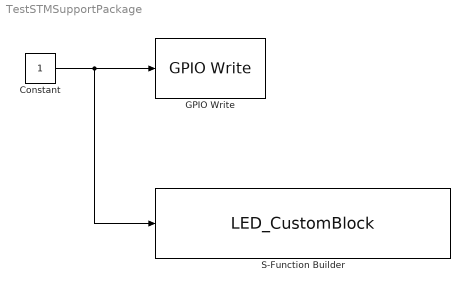
/*
 * Academic License - for use in teaching, academic research, and meeting
 * course requirements at degree granting institutions only.  Not for
 * government, commercial, or other organizational use.
 *
 * File: TestSTMSupportPackage.c
 *
 * Code generated for Simulink model 'TestSTMSupportPackage'.
 *
 * Model version                  : 1.6
 * Simulink Coder version         : 8.10 (R2016a) 10-Feb-2016
 * C/C++ source code generated on : Fri Jul 29 09:42:40 2016
 *
 * Target selection: ert.tlc
 * Embedded hardware selection: ARM Compatible->ARM Cortex
 * Code generation objectives: Unspecified
 * Validation result: Not run
 */

#include "TestSTMSupportPackage.h"
#include "TestSTMSupportPackage_private.h"
#include "TestSTMSupportPackage_dt.h"

/* Block states (auto storage) */
DW_TestSTMSupportPackage_T TestSTMSupportPackage_DW;

/* Real-time model */
RT_MODEL_TestSTMSupportPackag_T TestSTMSupportPackage_M_;
RT_MODEL_TestSTMSupportPackag_T *const TestSTMSupportPackage_M =
  &TestSTMSupportPackage_M_;

/* Model step function */
void TestSTMSupportPackage_step(void)
{
  /* S-Function (stm32f4_do_write): '<Root>/GPIO Write' incorporates:
   *  Constant: '<Root>/Constant'
   */
  MW_GPIO_WriteBit(3U, 13U, TestSTMSupportPackage_P.Constant_Value);

  /* S-Function (LED_CustomBlock): '<Root>/S-Function Builder' */
  LED_CustomBlock_Outputs_wrapper(&TestSTMSupportPackage_P.Constant_Value,
    &TestSTMSupportPackage_DW.SFunctionBuilder_DSTATE);

  /* S-Function "LED_CustomBlock_wrapper" Block: <Root>/S-Function Builder */
  LED_CustomBlock_Update_wrapper(&TestSTMSupportPackage_P.Constant_Value,
    &TestSTMSupportPackage_DW.SFunctionBuilder_DSTATE);

  /* External mode */
  rtExtModeUploadCheckTrigger(1);

  {                                    /* Sample time: [0.05s, 0.0s] */
    rtExtModeUpload(0, TestSTMSupportPackage_M->Timing.taskTime0);
  }

  /* signal main to stop simulation */
  {                                    /* Sample time: [0.05s, 0.0s] */
    if ((rtmGetTFinal(TestSTMSupportPackage_M)!=-1) &&
        !((rtmGetTFinal(TestSTMSupportPackage_M)-
           TestSTMSupportPackage_M->Timing.taskTime0) >
          TestSTMSupportPackage_M->Timing.taskTime0 * (DBL_EPSILON))) {
      rtmSetErrorStatus(TestSTMSupportPackage_M, "Simulation finished");
    }

    if (rtmGetStopRequested(TestSTMSupportPackage_M)) {
      rtmSetErrorStatus(TestSTMSupportPackage_M, "Simulation finished");
    }
  }

  /* Update absolute time for base rate */
  /* The "clockTick0" counts the number of times the code of this task has
   * been executed. The absolute time is the multiplication of "clockTick0"
   * and "Timing.stepSize0". Size of "clockTick0" ensures timer will not
   * overflow during the application lifespan selected.
   * Timer of this task consists of two 32 bit unsigned integers.
   * The two integers represent the low bits Timing.clockTick0 and the high bits
   * Timing.clockTickH0. When the low bit overflows to 0, the high bits increment.
   */
  if (!(++TestSTMSupportPackage_M->Timing.clockTick0)) {
    ++TestSTMSupportPackage_M->Timing.clockTickH0;
  }

  TestSTMSupportPackage_M->Timing.taskTime0 =
    TestSTMSupportPackage_M->Timing.clockTick0 *
    TestSTMSupportPackage_M->Timing.stepSize0 +
    TestSTMSupportPackage_M->Timing.clockTickH0 *
    TestSTMSupportPackage_M->Timing.stepSize0 * 4294967296.0;
}
